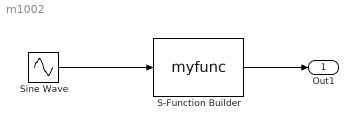
/*
 * m1002.c
 * 
 * Real-Time Workshop code generation for Simulink model "m1002.mdl".
 *
 * Model Version              : 1.2
 * Real-Time Workshop version : 6.1  (R14SP1)  05-Sep-2004
 * C source code generated on : Sun Apr 03 14:42:29 2005
 */

#include "m1002.h"
#include "m1002_private.h"

/* Block signals (auto storage) */
BlockIO_m1002 m1002_B;

/* External output (root outports fed by signals with auto storage) */
ExternalOutputs_m1002 m1002_Y;

/* Real-time model */
rtModel_m1002 m1002_M_;
rtModel_m1002 *m1002_M = &m1002_M_;

/* Model output function */
static void m1002_output(int_T tid)
{

  /* Sin: '<Root>/Sine Wave' */
  m1002_B.SineWave = m1002_P.SineWave_Amp *
    sin(m1002_P.SineWave_Freq * m1002_M->Timing.t[0] + m1002_P.SineWave_Phase) +
    m1002_P.SineWave_Bias;

  /* S-Function "myfunc_wrapper" Block: <Root>/S-Function Builder */

  myfunc_Outputs_wrapper(&m1002_B.SineWave, &m1002_B.SFunctionBuilder );

  /* Outport: '<Root>/Out1' */
  m1002_Y.Out1 = m1002_B.SFunctionBuilder;
}

/* Model update function */
static void m1002_update(int_T tid)
{

  /* Update absolute time for base rate */

  if(!(++m1002_M->Timing.clockTick0)) ++m1002_M->Timing.clockTickH0;
  m1002_M->Timing.t[0] = m1002_M->Timing.clockTick0 * m1002_M->Timing.stepSize0
    + m1002_M->Timing.clockTickH0 * m1002_M->Timing.stepSize0 * 4294967296.0;

  {
    /* Update absolute timer for sample time: [0.1s, 0.0s] */

    if(!(++m1002_M->Timing.clockTick1)) ++m1002_M->Timing.clockTickH1;
    m1002_M->Timing.t[1] = m1002_M->Timing.clockTick1 *
      m1002_M->Timing.stepSize1 + m1002_M->Timing.clockTickH1 *
      m1002_M->Timing.stepSize1 * 4294967296.0;
  }
}
